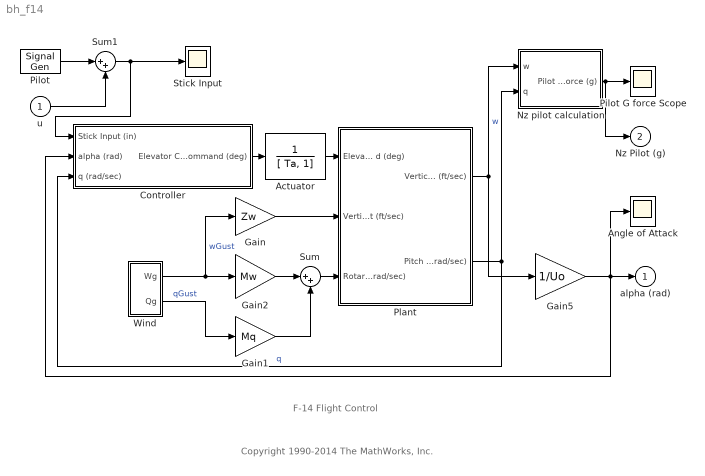
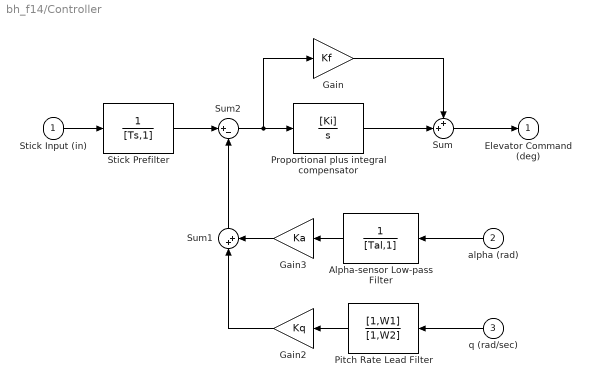
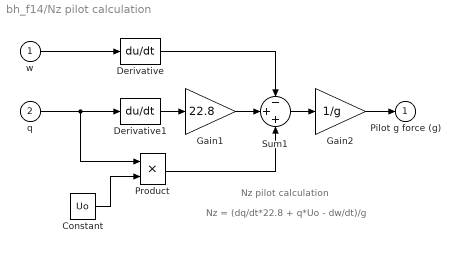
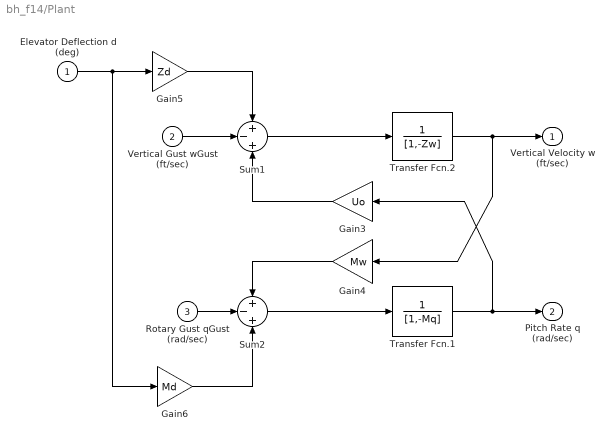
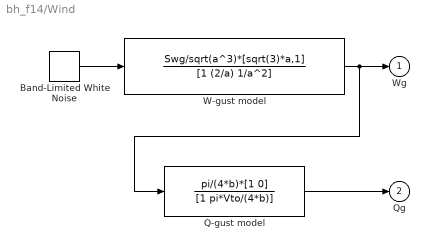
/*
 * File: bh_f14.c
 *
 * Code generated for Simulink model 'bh_f14'.
 *
 * Model version                  : 1.18
 * Simulink Coder version         : 8.10 (R2016a) 10-Feb-2016
 * C/C++ source code generated on : Wed Jun 22 07:56:08 2016
 *
 * Target selection: ert.tlc
 * Embedded hardware selection: 32-bit Generic
 * Code generation objectives: Unspecified
 * Validation result: Not run
 */

#include "bh_f14.h"
#include "bh_f14_private.h"

static void rate_scheduler(RT_MODEL_bh_f14_T *const bh_f14_M);

/*
 *   This function updates active task flag for each subrate.
 * The function is called at model base rate, hence the
 * generated code self-manages all its subrates.
 */
static void rate_scheduler(RT_MODEL_bh_f14_T *const bh_f14_M)
{
  /* Compute which subrates run during the next base time step.  Subrates
   * are an integer multiple of the base rate counter.  Therefore, the subtask
   * counter is reset when it reaches its limit (zero means run).
   */
  (bh_f14_M->Timing.TaskCounters.TID[2])++;
  if ((bh_f14_M->Timing.TaskCounters.TID[2]) > 9) {/* Sample time: [0.1s, 0.0s] */
    bh_f14_M->Timing.TaskCounters.TID[2] = 0;
  }
}

/*
 * This function updates continuous states using the ODE4 fixed-step
 * solver algorithm
 */
static void rt_ertODEUpdateContinuousStates(RTWSolverInfo *si ,
  RT_MODEL_bh_f14_T *const bh_f14_M, real_T bh_f14_U_u, real_T
  *bh_f14_Y_alpharad, real_T *bh_f14_Y_NzPilotg)
{
  time_T t = rtsiGetT(si);
  time_T tnew = rtsiGetSolverStopTime(si);
  time_T h = rtsiGetStepSize(si);
  real_T *x = rtsiGetContStates(si);
  ODE4_IntgData *id = (ODE4_IntgData *)rtsiGetSolverData(si);
  real_T *y = id->y;
  real_T *f0 = id->f[0];
  real_T *f1 = id->f[1];
  real_T *f2 = id->f[2];
  real_T *f3 = id->f[3];
  real_T temp;
  int_T i;
  int_T nXc = 10;
  rtsiSetSimTimeStep(si,MINOR_TIME_STEP);

  /* Save the state values at time t in y, we'll use x as ynew. */
  (void) memcpy(y, x,
                (uint_T)nXc*sizeof(real_T));

  /* Assumes that rtsiSetT and ModelOutputs are up-to-date */
  /* f0 = f(t,y) */
  rtsiSetdX(si, f0);
  bh_f14_derivatives(bh_f14_M);

  /* f1 = f(t + (h/2), y + (h/2)*f0) */
  temp = 0.5 * h;
  for (i = 0; i < nXc; i++) {
    x[i] = y[i] + (temp*f0[i]);
  }

  rtsiSetT(si, t + temp);
  rtsiSetdX(si, f1);
  bh_f14_step(bh_f14_M, bh_f14_U_u, bh_f14_Y_alpharad, bh_f14_Y_NzPilotg);
  bh_f14_derivatives(bh_f14_M);

  /* f2 = f(t + (h/2), y + (h/2)*f1) */
  for (i = 0; i < nXc; i++) {
    x[i] = y[i] + (temp*f1[i]);
  }

  rtsiSetdX(si, f2);
  bh_f14_step(bh_f14_M, bh_f14_U_u, bh_f14_Y_alpharad, bh_f14_Y_NzPilotg);
  bh_f14_derivatives(bh_f14_M);

  /* f3 = f(t + h, y + h*f2) */
  for (i = 0; i < nXc; i++) {
    x[i] = y[i] + (h*f2[i]);
  }

  rtsiSetT(si, tnew);
  rtsiSetdX(si, f3);
  bh_f14_step(bh_f14_M, bh_f14_U_u, bh_f14_Y_alpharad, bh_f14_Y_NzPilotg);
  bh_f14_derivatives(bh_f14_M);

  /* tnew = t + h
     ynew = y + (h/6)*(f0 + 2*f1 + 2*f2 + 2*f3) */
  temp = h / 6.0;
  for (i = 0; i < nXc; i++) {
    x[i] = y[i] + temp*(f0[i] + 2.0*f1[i] + 2.0*f2[i] + f3[i]);
  }

  rtsiSetSimTimeStep(si,MAJOR_TIME_STEP);
}

real_T rt_urand_Upu32_Yd_f_pw_snf(uint32_T *u)
{
  uint32_T lo;
  uint32_T hi;

  /* Uniform random number generator (random number between 0 and 1)

     #define IA      16807                      magic multiplier = 7^5
     #define IM      2147483647                 modulus = 2^31-1
     #define IQ      127773                     IM div IA
     #define IR      2836                       IM modulo IA
     #define S       4.656612875245797e-10      reciprocal of 2^31-1
     test = IA * (seed % IQ) - IR * (seed/IQ)
     seed = test < 0 ? (test + IM) : test
     return (seed*S)
   */
  lo = *u % 127773U * 16807U;
  hi = *u / 127773U * 2836U;
  if (lo < hi) {
    *u = 2147483647U - (hi - lo);
  } else {
    *u = lo - hi;
  }

  return (real_T)*u * 4.6566128752457969E-10;
}

real_T rt_nrand_Upu32_Yd_f_pw_snf(uint32_T *u)
{
  real_T y;
  real_T sr;
  real_T si;

  /* Normal (Gaussian) random number generator */
  do {
    sr = 2.0 * rt_urand_Upu32_Yd_f_pw_snf(u) - 1.0;
    si = 2.0 * rt_urand_Upu32_Yd_f_pw_snf(u) - 1.0;
    si = sr * sr + si * si;
  } while (si > 1.0);

  y = sqrt(-2.0 * log(si) / si) * sr;
  return y;
}

/* Model step function */
void bh_f14_step(RT_MODEL_bh_f14_T *const bh_f14_M, real_T bh_f14_U_u, real_T
                 *bh_f14_Y_alpharad, real_T *bh_f14_Y_NzPilotg)
{
  B_bh_f14_T *bh_f14_B = ((B_bh_f14_T *) bh_f14_M->ModelData.blockIO);
  DW_bh_f14_T *bh_f14_DW = ((DW_bh_f14_T *) bh_f14_M->ModelData.dwork);
  X_bh_f14_T *bh_f14_X = ((X_bh_f14_T *) bh_f14_M->ModelData.contStates);
  if (rtmIsMajorTimeStep(bh_f14_M)) {
    /* set solver stop time */
    rtsiSetSolverStopTime(&bh_f14_M->solverInfo,((bh_f14_M->Timing.clockTick0+1)*
      bh_f14_M->Timing.stepSize0));
  }                                    /* end MajorTimeStep */

  /* Update absolute time of base rate at minor time step */
  if (rtmIsMinorTimeStep(bh_f14_M)) {
    bh_f14_M->Timing.t[0] = rtsiGetT(&bh_f14_M->solverInfo);
  }

  {
    real_T *lastU;
    real_T rtb_Actuator;
    real_T rtb_AlphasensorLowpassFilter;

    /* TransferFcn: '<S3>/Transfer Fcn.2' */
    bh_f14_B->TransferFcn2 = 0.0;
    bh_f14_B->TransferFcn2 += 1.0 * bh_f14_X->TransferFcn2_CSTATE;

    /* Gain: '<Root>/Gain5' */
    bh_f14_B->Gain5 = 0.001450536698578474 * bh_f14_B->TransferFcn2;

    /* Outport: '<Root>/alpha (rad)' */
    *bh_f14_Y_alpharad = bh_f14_B->Gain5;

    /* Derivative: '<S2>/Derivative' */
    if ((bh_f14_DW->TimeStampA >= bh_f14_M->Timing.t[0]) &&
        (bh_f14_DW->TimeStampB >= bh_f14_M->Timing.t[0])) {
      rtb_AlphasensorLowpassFilter = 0.0;
    } else {
      rtb_Actuator = bh_f14_DW->TimeStampA;
      lastU = &bh_f14_DW->LastUAtTimeA;
      if (bh_f14_DW->TimeStampA < bh_f14_DW->TimeStampB) {
        if (bh_f14_DW->TimeStampB < bh_f14_M->Timing.t[0]) {
          rtb_Actuator = bh_f14_DW->TimeStampB;
          lastU = &bh_f14_DW->LastUAtTimeB;
        }
      } else {
        if (bh_f14_DW->TimeStampA >= bh_f14_M->Timing.t[0]) {
          rtb_Actuator = bh_f14_DW->TimeStampB;
          lastU = &bh_f14_DW->LastUAtTimeB;
        }
      }

      rtb_AlphasensorLowpassFilter = (bh_f14_B->TransferFcn2 - *lastU) /
        (bh_f14_M->Timing.t[0] - rtb_Actuator);
    }

    /* End of Derivative: '<S2>/Derivative' */

    /* TransferFcn: '<S3>/Transfer Fcn.1' */
    bh_f14_B->TransferFcn1 = 0.0;
    bh_f14_B->TransferFcn1 += 1.0 * bh_f14_X->TransferFcn1_CSTATE;

    /* Derivative: '<S2>/Derivative1' */
    if ((bh_f14_DW->TimeStampA_o >= bh_f14_M->Timing.t[0]) &&
        (bh_f14_DW->TimeStampB_h >= bh_f14_M->Timing.t[0])) {
      rtb_Actuator = 0.0;
    } else {
      rtb_Actuator = bh_f14_DW->TimeStampA_o;
      lastU = &bh_f14_DW->LastUAtTimeA_i;
      if (bh_f14_DW->TimeStampA_o < bh_f14_DW->TimeStampB_h) {
        if (bh_f14_DW->TimeStampB_h < bh_f14_M->Timing.t[0]) {
          rtb_Actuator = bh_f14_DW->TimeStampB_h;
          lastU = &bh_f14_DW->LastUAtTimeB_j;
        }
      } else {
        if (bh_f14_DW->TimeStampA_o >= bh_f14_M->Timing.t[0]) {
          rtb_Actuator = bh_f14_DW->TimeStampB_h;
          lastU = &bh_f14_DW->LastUAtTimeB_j;
        }
      }

      rtb_Actuator = (bh_f14_B->TransferFcn1 - *lastU) / (bh_f14_M->Timing.t[0]
        - rtb_Actuator);
    }

    /* End of Derivative: '<S2>/Derivative1' */

    /* Gain: '<S2>/Gain2' incorporates:
     *  Constant: '<S2>/Constant'
     *  Gain: '<S2>/Gain1'
     *  Product: '<S2>/Product'
     *  Sum: '<S2>/Sum1'
     */
    bh_f14_B->Gain2 = ((22.8 * rtb_Actuator - rtb_AlphasensorLowpassFilter) +
                       bh_f14_B->TransferFcn1 * 689.4) * 0.031055900621118009;

    /* Outport: '<Root>/Nz Pilot (g)' */
    *bh_f14_Y_NzPilotg = bh_f14_B->Gain2;
    if (rtmIsMajorTimeStep(bh_f14_M) &&
        bh_f14_M->Timing.TaskCounters.TID[1] == 0) {
    }

    /* SignalGenerator: '<Root>/Pilot' */
    rtb_Actuator = 0.079577471545947673 * bh_f14_M->Timing.t[0];
    if (rtb_Actuator - floor(rtb_Actuator) >= 0.5) {
      rtb_Actuator = 1.0;
    } else {
      rtb_Actuator = -1.0;
    }

    /* End of SignalGenerator: '<Root>/Pilot' */

    /* Sum: '<Root>/Sum1' incorporates:
     *  Inport: '<Root>/u'
     */
    bh_f14_B->Sum1 = rtb_Actuator + bh_f14_U_u;
    if (rtmIsMajorTimeStep(bh_f14_M) &&
        bh_f14_M->Timing.TaskCounters.TID[1] == 0) {
    }

    /* TransferFcn: '<Root>/Actuator' */
    rtb_Actuator = 20.0 * bh_f14_X->Actuator_CSTATE;

    /* Sum: '<S1>/Sum2' incorporates:
     *  Gain: '<S1>/Gain2'
     *  Gain: '<S1>/Gain3'
     *  Sum: '<S1>/Sum1'
     *  TransferFcn: '<S1>/Alpha-sensor Low-pass Filter'
     *  TransferFcn: '<S1>/Pitch Rate Lead Filter'
     *  TransferFcn: '<S1>/Stick Prefilter'
     */
    bh_f14_B->Sum2 = 10.0 * bh_f14_X->StickPrefilter_CSTATE - (((-1.173) *
      bh_f14_X->PitchRateLeadFilter_CSTATE + 1.0 * bh_f14_B->TransferFcn1) *
      0.8156 + 2.5258903763576663 * bh_f14_X->AlphasensorLowpassFilter_CSTATE *
      0.677);

    /* Sum: '<S1>/Sum' incorporates:
     *  Gain: '<S1>/Gain'
     *  TransferFcn: '<S1>/Proportional plus integral compensator'
     */
    bh_f14_B->Sum = (-1.746) * bh_f14_B->Sum2 + (-3.864) *
      bh_f14_X->Proportionalplusintegralcompens;

    /* TransferFcn: '<S4>/W-gust model' */
    bh_f14_B->Wgustmodel = 0.0;
    bh_f14_B->Wgustmodel += 3.2636985073652349 * bh_f14_X->Wgustmodel_CSTATE[0];
    bh_f14_B->Wgustmodel += 0.74337115819042854 * bh_f14_X->Wgustmodel_CSTATE[1];

    /* Sum: '<S3>/Sum1' incorporates:
     *  Gain: '<Root>/Gain'
     *  Gain: '<S3>/Gain3'
     *  Gain: '<S3>/Gain5'
     */
    bh_f14_B->Sum1_o = ((-63.9979) * rtb_Actuator - (-0.6385) *
                        bh_f14_B->Wgustmodel) + 689.4 * bh_f14_B->TransferFcn1;

    /* Sum: '<S3>/Sum2' incorporates:
     *  Gain: '<Root>/Gain1'
     *  Gain: '<Root>/Gain2'
     *  Gain: '<S3>/Gain4'
     *  Gain: '<S3>/Gain6'
     *  Sum: '<Root>/Sum'
     *  TransferFcn: '<S4>/Q-gust model'
     */
    bh_f14_B->Sum2_h = ((-0.00592) * bh_f14_B->TransferFcn2 -
                        (((-0.10355189850799512) * bh_f14_X->Qgustmodel_CSTATE +
                          0.01224696964599171 * bh_f14_B->Wgustmodel) * (-0.6571)
                         + (-0.00592) * bh_f14_B->Wgustmodel)) + (-6.8847) *
      rtb_Actuator;
    if (rtmIsMajorTimeStep(bh_f14_M) &&
        bh_f14_M->Timing.TaskCounters.TID[2] == 0) {
      /* Gain: '<S5>/Output' incorporates:
       *  RandomNumber: '<S5>/White Noise'
       */
      bh_f14_B->Output = 3.1622776601683791 * bh_f14_DW->NextOutput;
    }
  }

  if (rtmIsMajorTimeStep(bh_f14_M)) {
    real_T *lastU;

    /* Update for Derivative: '<S2>/Derivative' */
    if (bh_f14_DW->TimeStampA == (rtInf)) {
      bh_f14_DW->TimeStampA = bh_f14_M->Timing.t[0];
      lastU = &bh_f14_DW->LastUAtTimeA;
    } else if (bh_f14_DW->TimeStampB == (rtInf)) {
      bh_f14_DW->TimeStampB = bh_f14_M->Timing.t[0];
      lastU = &bh_f14_DW->LastUAtTimeB;
    } else if (bh_f14_DW->TimeStampA < bh_f14_DW->TimeStampB) {
      bh_f14_DW->TimeStampA = bh_f14_M->Timing.t[0];
      lastU = &bh_f14_DW->LastUAtTimeA;
    } else {
      bh_f14_DW->TimeStampB = bh_f14_M->Timing.t[0];
      lastU = &bh_f14_DW->LastUAtTimeB;
    }

    *lastU = bh_f14_B->TransferFcn2;

    /* End of Update for Derivative: '<S2>/Derivative' */

    /* Update for Derivative: '<S2>/Derivative1' */
    if (bh_f14_DW->TimeStampA_o == (rtInf)) {
      bh_f14_DW->TimeStampA_o = bh_f14_M->Timing.t[0];
      lastU = &bh_f14_DW->LastUAtTimeA_i;
    } else if (bh_f14_DW->TimeStampB_h == (rtInf)) {
      bh_f14_DW->TimeStampB_h = bh_f14_M->Timing.t[0];
      lastU = &bh_f14_DW->LastUAtTimeB_j;
    } else if (bh_f14_DW->TimeStampA_o < bh_f14_DW->TimeStampB_h) {
      bh_f14_DW->TimeStampA_o = bh_f14_M->Timing.t[0];
      lastU = &bh_f14_DW->LastUAtTimeA_i;
    } else {
      bh_f14_DW->TimeStampB_h = bh_f14_M->Timing.t[0];
      lastU = &bh_f14_DW->LastUAtTimeB_j;
    }

    *lastU = bh_f14_B->TransferFcn1;

    /* End of Update for Derivative: '<S2>/Derivative1' */
    if (rtmIsMajorTimeStep(bh_f14_M) &&
        bh_f14_M->Timing.TaskCounters.TID[2] == 0) {
      /* Update for RandomNumber: '<S5>/White Noise' */
      bh_f14_DW->NextOutput = rt_nrand_Upu32_Yd_f_pw_snf(&bh_f14_DW->RandSeed) *
        1.0 + 0.0;
    }
  }                                    /* end MajorTimeStep */

  if (rtmIsMajorTimeStep(bh_f14_M)) {
    rt_ertODEUpdateContinuousStates(&bh_f14_M->solverInfo, bh_f14_M, bh_f14_U_u,
      bh_f14_Y_alpharad, bh_f14_Y_NzPilotg);

    /* Update absolute time for base rate */
    /* The "clockTick0" counts the number of times the code of this task has
     * been executed. The absolute time is the multiplication of "clockTick0"
     * and "Timing.stepSize0". Size of "clockTick0" ensures timer will not
     * overflow during the application lifespan selected.
     */
    ++bh_f14_M->Timing.clockTick0;
    bh_f14_M->Timing.t[0] = rtsiGetSolverStopTime(&bh_f14_M->solverInfo);

    {
      /* Update absolute timer for sample time: [0.01s, 0.0s] */
      /* The "clockTick1" counts the number of times the code of this task has
       * been executed. The resolution of this integer timer is 0.01, which is the step size
       * of the task. Size of "clockTick1" ensures timer will not overflow during the
       * application lifespan selected.
       */
      bh_f14_M->Timing.clockTick1++;
    }

    rate_scheduler(bh_f14_M);
  }                                    /* end MajorTimeStep */
}
